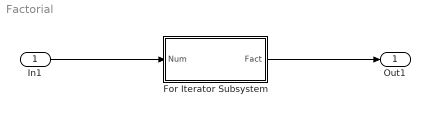
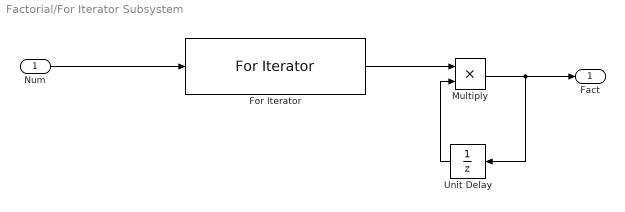
/*
 * File: Factorial.c
 *
 * Code generated for Simulink model 'Factorial'.
 *
 * Model version                  : 1.6
 * Simulink Coder version         : 9.0 (R2018b) 24-May-2018
 * C/C++ source code generated on : Wed Mar 30 13:18:10 2022
 *
 * Target selection: ert.tlc
 * Embedded hardware selection: Intel->x86-64 (Windows64)
 * Code generation objectives: Unspecified
 * Validation result: Not run
 */

#include "Factorial.h"
#include "Factorial_private.h"

/* External inputs (root inport signals with default storage) */
ExtU_Factorial_T Factorial_U;

/* External outputs (root outports fed by signals with default storage) */
ExtY_Factorial_T Factorial_Y;

/* Real-time model */
RT_MODEL_Factorial_T Factorial_M_;
RT_MODEL_Factorial_T *const Factorial_M = &Factorial_M_;

/* Model step function */
void Factorial_step(void)
{
  int32_T s1_iter;
  real_T UnitDelay_DSTATE;

  /* Outputs for Iterator SubSystem: '<Root>/For Iterator Subsystem' incorporates:
   *  ForIterator: '<S1>/For Iterator'
   */
  /* InitializeConditions for UnitDelay: '<S1>/Unit Delay' */
  UnitDelay_DSTATE = 1.0;

  /* Inport: '<Root>/In1' */
  for (s1_iter = 1; s1_iter <= (int32_T)Factorial_U.In1; s1_iter++) {
    /* Outport: '<Root>/Out1' incorporates:
     *  Product: '<S1>/Multiply'
     *  UnitDelay: '<S1>/Unit Delay'
     */
    Factorial_Y.Out1 = (real_T)s1_iter * UnitDelay_DSTATE;

    /* Update for UnitDelay: '<S1>/Unit Delay' incorporates:
     *  Outport: '<Root>/Out1'
     */
    UnitDelay_DSTATE = Factorial_Y.Out1;
  }

  /* End of Inport: '<Root>/In1' */
  /* End of Outputs for SubSystem: '<Root>/For Iterator Subsystem' */
}
